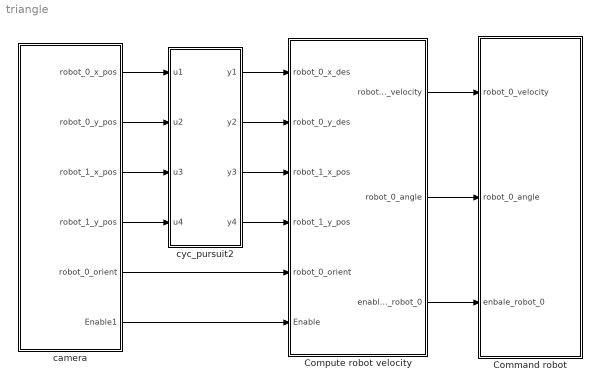
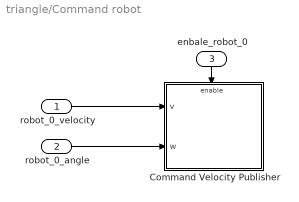
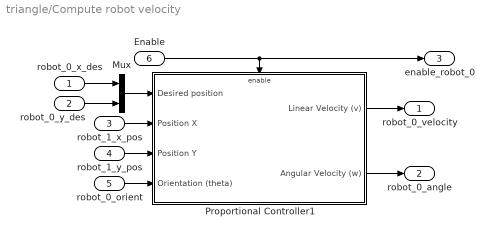
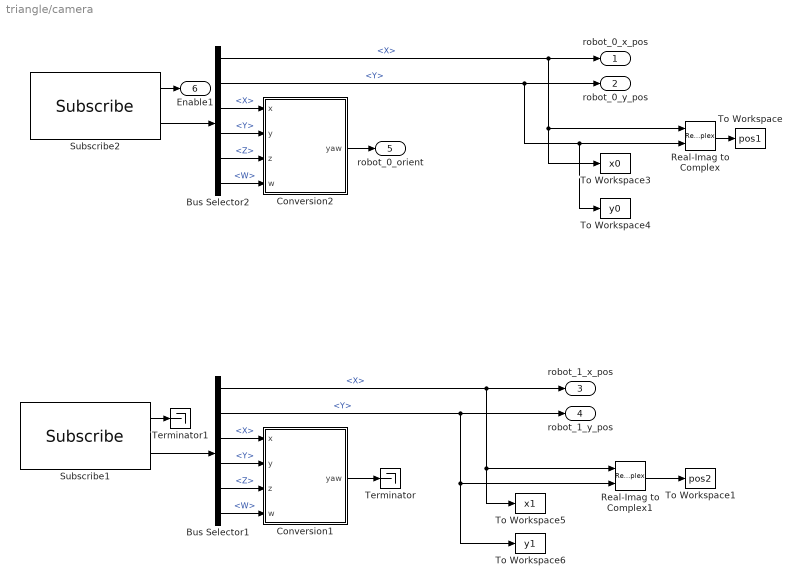
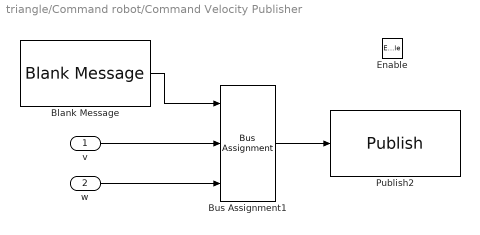
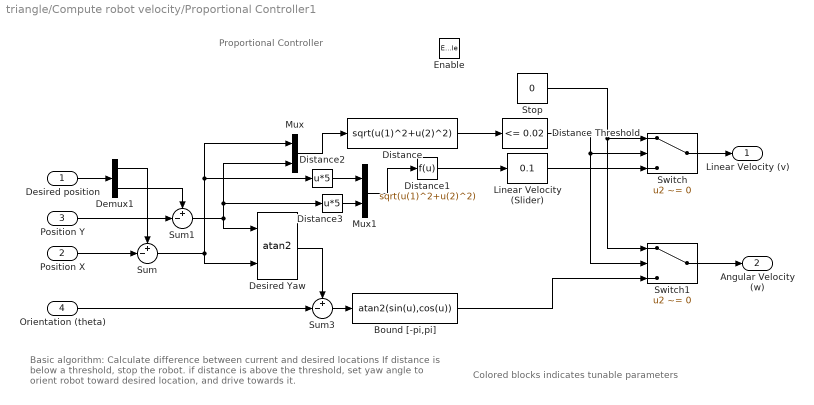
== matlab function triangle/cyc_pursuit2 ==
function [y1, y2, y3, y4] = fcn(u1, u2, u3, u4)
%#codegen

y1 = ((1-0.2)*u1+(u3*0.2)-(1*0.2));
y2 = ((1-0.2)*u2+(0.2*u4)+(1.7321*0.2));
y3=u1;
y4=u2;




%         y1 = ((1-0.2)*u1+(u3*0.2)+(1.5451*0.2));
%         y2 = ((1-0.2)*u2+(0.2*u4)+(4.7553*0.2));
%         y3 = ((1-0.2)*u3+(u5*0.2)-(4.0451*0.2));
%         y4 = ((1-0.2)*u4+(u6*0.2)+(2.9389*0.2));
%         y5 = ((1-0.2)*u5+(u7*0.2)-(4.0451*0.2));
%         y6 = ((1-0.2)*u6+(u8*0.2)-(2.9389*0.2));
%         y7 = ((1-0.2)*u7+(u9*0.2)+(1.5451*0.2));
%         y8 = ((1-0.2)*u8+(u10*0.2)-(4.7553*0.2));
%         y9 = ((1-0.2)*u9+(u1*0.2)+(5*0.2));
%         y10 = ((1-0.2)*u10+(u2*0.2)+(0*0.2));

== matlab function triangle/camera/Conversion1 ==
function yaw  = quat2eul(x,y,z,w)
%#codegen

% Convert the quaternion to a yaw angle (zyx euler angle)
eul = quat2eul([w,x,y,z]);
yaw = eul(1);

end

== matlab function triangle/camera/Conversion2 ==
function yaw  = quat2eul(x,y,z,w)
%#codegen

% Convert the quaternion to a yaw angle (zyx euler angle)
eul = quat2eul([w,x,y,z]);
yaw = eul(1);

end

//
// Academic License - for use in teaching, academic research, and meeting
// course requirements at degree granting institutions only.  Not for
// government, commercial, or other organizational use.
//
// File: triangle.cpp
//
// Code generated for Simulink model 'triangle'.
//
// Model version                  : 1.229
// Simulink Coder version         : 8.11 (R2016b) 25-Aug-2016
// C/C++ source code generated on : Wed Jan  4 17:55:04 2017
//
// Target selection: ert.tlc
// Embedded hardware selection: Generic->Unspecified (assume 32-bit Generic)
// Code generation objectives: Unspecified
// Validation result: Not run
//
#include "triangle.h"
#include "triangle_private.h"
#define triangle_MessageQueueLen       (105)
#define triangle_MessageQueueLen_o     (1)

real_T rt_atan2d_snf(real_T u0, real_T u1)
{
  real_T y;
  int32_T u0_0;
  int32_T u1_0;
  if (rtIsNaN(u0) || rtIsNaN(u1)) {
    y = (rtNaN);
  } else if (rtIsInf(u0) && rtIsInf(u1)) {
    if (u0 > 0.0) {
      u0_0 = 1;
    } else {
      u0_0 = -1;
    }

    if (u1 > 0.0) {
      u1_0 = 1;
    } else {
      u1_0 = -1;
    }

    y = atan2((real_T)u0_0, (real_T)u1_0);
  } else if (u1 == 0.0) {
    if (u0 > 0.0) {
      y = RT_PI / 2.0;
    } else if (u0 < 0.0) {
      y = -(RT_PI / 2.0);
    } else {
      y = 0.0;
    }
  } else {
    y = atan2(u0, u1);
  }

  return y;
}

//
// Output and update for atomic system:
//    '<S3>/Conversion1'
//    '<S3>/Conversion2'
//
void triangle_Conversion1(real_T rtu_x, real_T rtu_y, real_T rtu_z, real_T rtu_w,
  B_Conversion1_triangle_T *localB)
{
  real_T b_y;
  real_T q_idx_0;
  real_T q_idx_1;
  real_T q_idx_2;

  // MATLAB Function 'camera/Conversion1': '<S11>:1'
  //  Convert the quaternion to a yaw angle (zyx euler angle)
  // '<S11>:1:5'
  b_y = 1.0 / sqrt(((rtu_w * rtu_w + rtu_x * rtu_x) + rtu_y * rtu_y) + rtu_z *
                   rtu_z);
  q_idx_0 = rtu_w * b_y;
  q_idx_1 = rtu_x * b_y;
  q_idx_2 = rtu_y * b_y;
  b_y *= rtu_z;

  // '<S11>:1:6'
  localB->yaw = rt_atan2d_snf((q_idx_1 * q_idx_2 + q_idx_0 * b_y) * 2.0,
    ((q_idx_0 * q_idx_0 + q_idx_1 * q_idx_1) - q_idx_2 * q_idx_2) - b_y * b_y);
}

real_T rt_powd_snf(real_T u0, real_T u1)
{
  real_T y;
  real_T tmp;
  real_T tmp_0;
  if (rtIsNaN(u0) || rtIsNaN(u1)) {
    y = (rtNaN);
  } else {
    tmp = fabs(u0);
    tmp_0 = fabs(u1);
    if (rtIsInf(u1)) {
      if (tmp == 1.0) {
        y = (rtNaN);
      } else if (tmp > 1.0) {
        if (u1 > 0.0) {
          y = (rtInf);
        } else {
          y = 0.0;
        }
      } else if (u1 > 0.0) {
        y = 0.0;
      } else {
        y = (rtInf);
      }
    } else if (tmp_0 == 0.0) {
      y = 1.0;
    } else if (tmp_0 == 1.0) {
      if (u1 > 0.0) {
        y = u0;
      } else {
        y = 1.0 / u0;
      }
    } else if (u1 == 2.0) {
      y = u0 * u0;
    } else if ((u1 == 0.5) && (u0 >= 0.0)) {
      y = sqrt(u0);
    } else if ((u0 < 0.0) && (u1 > floor(u1))) {
      y = (rtNaN);
    } else {
      y = pow(u0, u1);
    }
  }

  return y;
}

// Model step function
void Example3ModelClass::step()
{
  boolean_T varargout_1;
  boolean_T rtb_Compare;

  // Outputs for Atomic SubSystem: '<S3>/Subscribe2'
  // Start for MATLABSystem: '<S14>/SourceBlock' incorporates:
  //   Inport: '<S16>/In1'
  //   MATLABSystem: '<S14>/SourceBlock'

  rtb_Compare = Sub_triangle_949.getLatestMessage(&triangle_B.varargout_2);

  // Outputs for Enabled SubSystem: '<S14>/Enabled Subsystem' incorporates:
  //   EnablePort: '<S16>/Enable'

  if (rtb_Compare) {
    triangle_B.In1 = triangle_B.varargout_2;
  }

  // End of Outputs for SubSystem: '<S14>/Enabled Subsystem'
  // End of Outputs for SubSystem: '<S3>/Subscribe2'

  // Outputs for Atomic SubSystem: '<S3>/Subscribe1'
  // Start for MATLABSystem: '<S13>/SourceBlock' incorporates:
  //   Inport: '<S15>/In1'
  //   MATLABSystem: '<S13>/SourceBlock'

  varargout_1 = Sub_triangle_948.getLatestMessage(&triangle_B.varargout_2);

  // Outputs for Enabled SubSystem: '<S13>/Enabled Subsystem' incorporates:
  //   EnablePort: '<S15>/Enable'

  if (varargout_1) {
    triangle_B.In1_m = triangle_B.varargout_2;
  }

  // End of Start for MATLABSystem: '<S13>/SourceBlock'
  // End of Outputs for SubSystem: '<S13>/Enabled Subsystem'
  // End of Outputs for SubSystem: '<S3>/Subscribe1'

  // MATLAB Function: '<S3>/Conversion2'
  // MATLAB Function 'cyc_pursuit2': '<S4>:1'
  // '<S4>:1:4'
  // '<S4>:1:5'
  // '<S4>:1:6'
  // '<S4>:1:7'
  //          y1 = ((1-0.2)*u1+(u3*0.2)+(1.5451*0.2));
  //          y2 = ((1-0.2)*u2+(0.2*u4)+(4.7553*0.2));
  //          y3 = ((1-0.2)*u3+(u5*0.2)-(4.0451*0.2));
  //          y4 = ((1-0.2)*u4+(u6*0.2)+(2.9389*0.2));
  //          y5 = ((1-0.2)*u5+(u7*0.2)-(4.0451*0.2));
  //          y6 = ((1-0.2)*u6+(u8*0.2)-(2.9389*0.2));
  //          y7 = ((1-0.2)*u7+(u9*0.2)+(1.5451*0.2));
  //          y8 = ((1-0.2)*u8+(u10*0.2)-(4.7553*0.2));
  //          y9 = ((1-0.2)*u9+(u1*0.2)+(5*0.2));
  //          y10 = ((1-0.2)*u10+(u2*0.2)+(0*0.2));
  triangle_Conversion1(triangle_B.In1.Pose.Orientation.X,
                       triangle_B.In1.Pose.Orientation.Y,
                       triangle_B.In1.Pose.Orientation.Z,
                       triangle_B.In1.Pose.Orientation.W,
                       &triangle_B.sf_Conversion2);

  // Outputs for Enabled SubSystem: '<S1>/Command Velocity Publisher' incorporates:
  //   EnablePort: '<S5>/Enable'

  // Outputs for Enabled SubSystem: '<S2>/Proportional Controller1' incorporates:
  //   EnablePort: '<S8>/Enable'

  // Outputs for Atomic SubSystem: '<S3>/Subscribe2'
  // Start for MATLABSystem: '<S14>/SourceBlock' incorporates:
  //   MATLABSystem: '<S14>/SourceBlock'

  if (rtb_Compare) {
    // Sum: '<S8>/Sum1' incorporates:
    //   MATLAB Function: '<Root>/cyc_pursuit2'
    //   SignalConversion: '<S3>/SigConversion_InsertedFor_Bus Selector1_at_outport_1'
    //   SignalConversion: '<S3>/SigConversion_InsertedFor_Bus Selector2_at_outport_1'

    triangle_B.Sum1 = (0.8 * triangle_B.In1.Pose.Position.Y + 0.2 *
                       triangle_B.In1_m.Pose.Position.Y) -
      triangle_B.In1.Pose.Position.Y;

    // Sum: '<S8>/Sum' incorporates:
    //   MATLAB Function: '<Root>/cyc_pursuit2'
    //   SignalConversion: '<S3>/SigConversion_InsertedFor_Bus Selector1_at_outport_0'
    //   SignalConversion: '<S3>/SigConversion_InsertedFor_Bus Selector2_at_outport_0'

    triangle_B.Sum = ((0.8 * triangle_B.In1.Pose.Position.X +
                       triangle_B.In1_m.Pose.Position.X * 0.2) + 0.4) -
      triangle_B.In1.Pose.Position.X;

    // Fcn: '<S8>/Distance'
    triangle_B.Distance1 = rt_powd_snf(triangle_B.Sum, 2.0) + rt_powd_snf
      (triangle_B.Sum1, 2.0);
    if (triangle_B.Distance1 < 0.0) {
      triangle_B.rtb_Distance1_m = -sqrt(-triangle_B.Distance1);
    } else {
      triangle_B.rtb_Distance1_m = sqrt(triangle_B.Distance1);
    }

    // End of Fcn: '<S8>/Distance'

    // Fcn: '<S8>/Distance1' incorporates:
    //   Fcn: '<S8>/Distance2'
    //   Fcn: '<S8>/Distance3'

    triangle_B.Distance1 = rt_powd_snf(triangle_B.Sum * 5.0, 2.0) + rt_powd_snf
      (triangle_B.Sum1 * 5.0, 2.0);

    // Switch: '<S8>/Switch' incorporates:
    //   Constant: '<S8>/Stop'
    //   Constant: '<S9>/Constant'
    //   Fcn: '<S8>/Bound [-pi,pi]'
    //   Fcn: '<S8>/Distance1'
    //   Gain: '<S10>/Slider Gain'
    //   RelationalOperator: '<S9>/Compare'
    //   Switch: '<S8>/Switch1'

    if (triangle_B.rtb_Distance1_m <= triangle_P.DistanceThreshold_const) {
      triangle_B.Distance1 = triangle_P.Stop_Value;
      triangle_B.Sum1 = triangle_P.Stop_Value;
    } else {
      if (triangle_B.Distance1 < 0.0) {
        // Fcn: '<S8>/Distance1'
        triangle_B.Distance1 = -sqrt(-triangle_B.Distance1);
      } else {
        // Fcn: '<S8>/Distance1'
        triangle_B.Distance1 = sqrt(triangle_B.Distance1);
      }

      triangle_B.Distance1 *= triangle_P.LinearVelocitySlider_gain;

      // Sum: '<S8>/Sum3' incorporates:
      //   Gain: '<S10>/Slider Gain'
      //   Trigonometry: '<S8>/Desired Yaw'

      triangle_B.Sum1 = rt_atan2d_snf(triangle_B.Sum1, triangle_B.Sum) -
        triangle_B.sf_Conversion2.yaw;
      triangle_B.Sum1 = rt_atan2d_snf(sin(triangle_B.Sum1), cos(triangle_B.Sum1));
    }

    // End of Switch: '<S8>/Switch'

    // BusAssignment: '<S5>/Bus Assignment1' incorporates:
    //   Constant: '<S6>/Constant'

    triangle_B.BusAssignment1 = triangle_P.Constant_Value_d0;
    triangle_B.BusAssignment1.Linear.X = triangle_B.Distance1;
    triangle_B.BusAssignment1.Angular.Z = triangle_B.Sum1;

    // Outputs for Atomic SubSystem: '<S5>/Publish2'
    // Start for MATLABSystem: '<S7>/SinkBlock' incorporates:
    //   MATLABSystem: '<S7>/SinkBlock'

    Pub_triangle_905.publish(&triangle_B.BusAssignment1);

    // End of Outputs for SubSystem: '<S5>/Publish2'
  }

  // End of Outputs for SubSystem: '<S3>/Subscribe2'
  // End of Outputs for SubSystem: '<S2>/Proportional Controller1'
  // End of Outputs for SubSystem: '<S1>/Command Velocity Publisher'

  // MATLAB Function: '<S3>/Conversion1'
  triangle_Conversion1(triangle_B.In1_m.Pose.Orientation.X,
                       triangle_B.In1_m.Pose.Orientation.Y,
                       triangle_B.In1_m.Pose.Orientation.Z,
                       triangle_B.In1_m.Pose.Orientation.W,
                       &triangle_B.sf_Conversion1);
}
